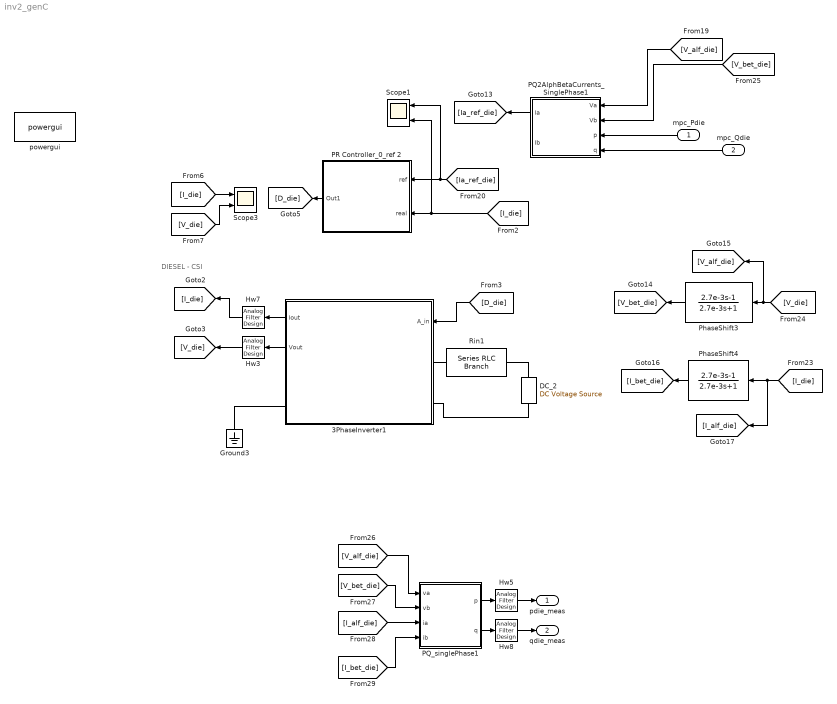
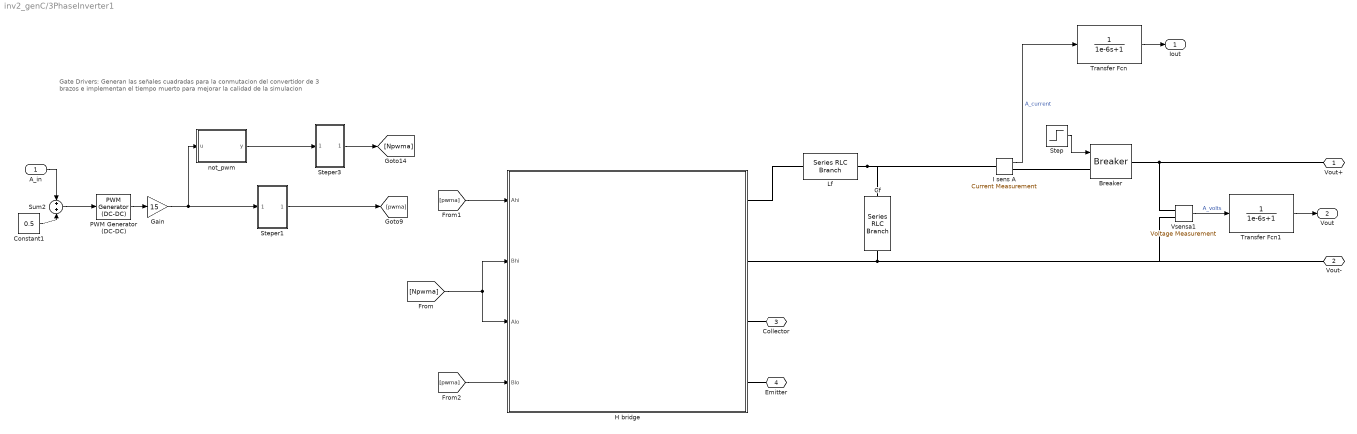
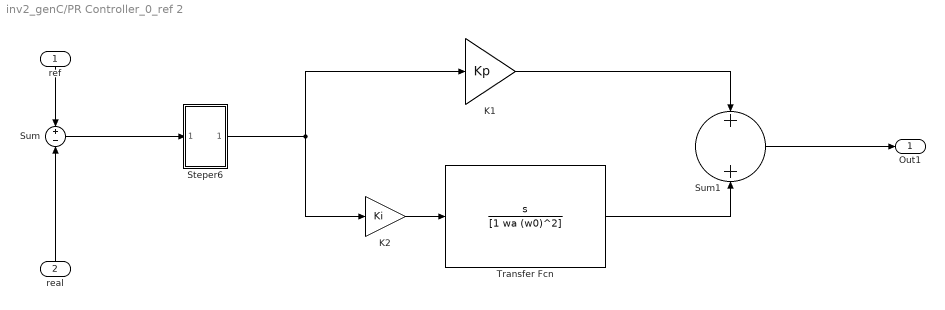
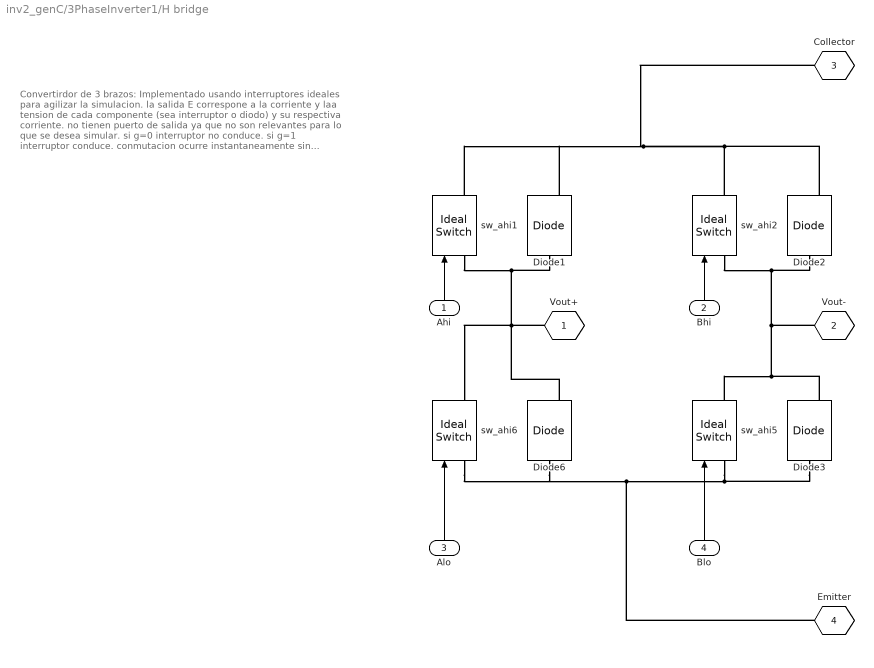
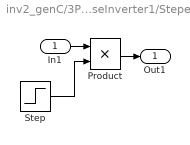
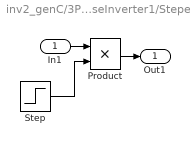
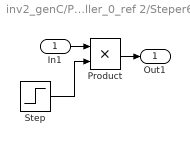
== matlab function inv2_genC/3PhaseInverter1/not_pwm ==
function y = fcn(u)
%#codegen

if(u==0 || u<0)
    a=15;
else
    a=0;
end;

y = a;

== matlab function inv2_genC/PQ2AlphBetaCurrents_SinglePhase1 ==
function [Ia, Ib] = fcn(Va, Vb, p, q)
%#codegen

% divide by zero protection
if(abs((Va^2+Vb^2))<=1000*eps(0))
    det = 1/eps(0);
else
    det = 1/(Va^2+Vb^2); % constante auxiliar
end;
%det = 1/(Va^2+Vb^2);

Mat = det*[Va Vb; Vb -Va];
Iab = Mat*[2*p;2*q];

Iaaux = Iab(1);
Ibaux = Iab(2);

ilim=1e3;

if(Iaaux>ilim)
    Iaaux=ilim;
end;
if(Iaaux<-ilim)
    Iaaux =-ilim;    
end;

if(isnan(Iaaux))
    Iaaux=0;
end;
%-----------------


if(Ibaux>ilim)
    Ibaux=ilim;
end;
if(Ibaux<-ilim)
    Ibaux =-ilim;    
end;

if(isnan(Ibaux))
    Ibaux=0;
end;
%-----------------


Ia = Iaaux;
Ib = Ibaux;

== matlab function inv2_genC/PQ_singlePhase1 ==
function [p, q] = fcn(va, vb, ia, ib)
% Esta funcion calcula la potencia activa y reactiva instantanea
% para el caso mnosofasico. En la revision de 2 papers he observado
% que una manera de extender la teoria de potencia al caso monofasico
% es asumiendo la tension o corriente de una fase como la componente
% alpha y hacer un desfase de 90 grados para obtener una version
% artificial de beta.

paux=va*ia+vb*ib;
if(paux > 20e4)
    paux = 20e4;
end
if(paux < -20e4)
    paux = -20e-4;
end

p = paux/2; % potencia activa instantanea

qaux = vb*ia-va*ib;

if(qaux>20e4)
    qaux=20e4;
end
if(qaux<-20e4)
    qaux=-20e4;
end

q = qaux/2; % potencia reactiva instantanea

/*
 * File: inv2_genC.c
 *
 * Code generated for Simulink model 'inv2_genC'.
 *
 * Model version                  : 1.7
 * Simulink Coder version         : 8.12 (R2017a) 16-Feb-2017
 * C/C++ source code generated on : Sat Apr 21 19:17:20 2018
 *
 * Target selection: ert.tlc
 * Embedded hardware selection: Intel->x86-64 (Windows64)
 * Code generation objectives: Unspecified
 * Validation result: Not run
 */

#include "inv2_genC.h"
#include "inv2_genC_private.h"

/* Block signals (auto storage) */
B_inv2_genC_T inv2_genC_B;

/* Continuous states */
X_inv2_genC_T inv2_genC_X;

/* Block states (auto storage) */
DW_inv2_genC_T inv2_genC_DW;

/* External inputs (root inport signals with auto storage) */
ExtU_inv2_genC_T inv2_genC_U;

/* External outputs (root outports fed by signals with auto storage) */
ExtY_inv2_genC_T inv2_genC_Y;

/* Real-time model */
RT_MODEL_inv2_genC_T inv2_genC_M_;
RT_MODEL_inv2_genC_T *const inv2_genC_M = &inv2_genC_M_;

/*
 * This function updates continuous states using the ODE3 fixed-step
 * solver algorithm
 */
static void rt_ertODEUpdateContinuousStates(RTWSolverInfo *si )
{
  /* Solver Matrices */
  static const real_T rt_ODE3_A[3] = {
    1.0/2.0, 3.0/4.0, 1.0
  };

  static const real_T rt_ODE3_B[3][3] = {
    { 1.0/2.0, 0.0, 0.0 },

    { 0.0, 3.0/4.0, 0.0 },

    { 2.0/9.0, 1.0/3.0, 4.0/9.0 }
  };

  time_T t = rtsiGetT(si);
  time_T tnew = rtsiGetSolverStopTime(si);
  time_T h = rtsiGetStepSize(si);
  real_T *x = rtsiGetContStates(si);
  ODE3_IntgData *id = (ODE3_IntgData *)rtsiGetSolverData(si);
  real_T *y = id->y;
  real_T *f0 = id->f[0];
  real_T *f1 = id->f[1];
  real_T *f2 = id->f[2];
  real_T hB[3];
  int_T i;
  int_T nXc = 18;
  rtsiSetSimTimeStep(si,MINOR_TIME_STEP);

  /* Save the state values at time t in y, we'll use x as ynew. */
  (void) memcpy(y, x,
                (uint_T)nXc*sizeof(real_T));

  /* Assumes that rtsiSetT and ModelOutputs are up-to-date */
  /* f0 = f(t,y) */
  rtsiSetdX(si, f0);
  inv2_genC_derivatives();

  /* f(:,2) = feval(odefile, t + hA(1), y + f*hB(:,1), args(:)(*)); */
  hB[0] = h * rt_ODE3_B[0][0];
  for (i = 0; i < nXc; i++) {
    x[i] = y[i] + (f0[i]*hB[0]);
  }

  rtsiSetT(si, t + h*rt_ODE3_A[0]);
  rtsiSetdX(si, f1);
  inv2_genC_step();
  inv2_genC_derivatives();

  /* f(:,3) = feval(odefile, t + hA(2), y + f*hB(:,2), args(:)(*)); */
  for (i = 0; i <= 1; i++) {
    hB[i] = h * rt_ODE3_B[1][i];
  }

  for (i = 0; i < nXc; i++) {
    x[i] = y[i] + (f0[i]*hB[0] + f1[i]*hB[1]);
  }

  rtsiSetT(si, t + h*rt_ODE3_A[1]);
  rtsiSetdX(si, f2);
  inv2_genC_step();
  inv2_genC_derivatives();

  /* tnew = t + hA(3);
     ynew = y + f*hB(:,3); */
  for (i = 0; i <= 2; i++) {
    hB[i] = h * rt_ODE3_B[2][i];
  }

  for (i = 0; i < nXc; i++) {
    x[i] = y[i] + (f0[i]*hB[0] + f1[i]*hB[1] + f2[i]*hB[2]);
  }

  rtsiSetT(si, tnew);
  rtsiSetSimTimeStep(si,MAJOR_TIME_STEP);
}

real_T rt_remd_snf(real_T u0, real_T u1)
{
  real_T y;
  real_T q;
  if (!((!rtIsNaN(u0)) && (!rtIsInf(u0)) && ((!rtIsNaN(u1)) && (!rtIsInf(u1)))))
  {
    y = (rtNaN);
  } else if ((u1 != 0.0) && (u1 != trunc(u1))) {
    q = fabs(u0 / u1);
    if (fabs(q - floor(q + 0.5)) <= DBL_EPSILON * q) {
      y = 0.0 * u0;
    } else {
      y = fmod(u0, u1);
    }
  } else {
    y = fmod(u0, u1);
  }

  return y;
}

/* Model step function */
void inv2_genC_step(void)
{
  if (rtmIsMajorTimeStep(inv2_genC_M)) {
    /* set solver stop time */
    if (!(inv2_genC_M->Timing.clockTick0+1)) {
      rtsiSetSolverStopTime(&inv2_genC_M->solverInfo,
                            ((inv2_genC_M->Timing.clockTickH0 + 1) *
        inv2_genC_M->Timing.stepSize0 * 4294967296.0));
    } else {
      rtsiSetSolverStopTime(&inv2_genC_M->solverInfo,
                            ((inv2_genC_M->Timing.clockTick0 + 1) *
        inv2_genC_M->Timing.stepSize0 + inv2_genC_M->Timing.clockTickH0 *
        inv2_genC_M->Timing.stepSize0 * 4294967296.0));
    }
  }                                    /* end MajorTimeStep */

  /* Update absolute time of base rate at minor time step */
  if (rtmIsMinorTimeStep(inv2_genC_M)) {
    inv2_genC_M->Timing.t[0] = rtsiGetT(&inv2_genC_M->solverInfo);
  }

  {
    int32_T a;
    real_T rtb_Product;
    real_T rtb_PhaseShift3;
    real_T rtb_PhaseShift4;
    real_T Sum2;
    if (rtmIsMajorTimeStep(inv2_genC_M)) {
      /* S-Function (sfun_spssw_discc): '<S48>/State-Space' incorporates:
       *  Constant: '<S33>/eee'
       *  Constant: '<S35>/eee'
       *  Constant: '<S37>/eee'
       *  Constant: '<S39>/eee'
       *  Constant: '<S46>/DC'
       *  Constant: '<S50>/SwitchCurrents'
       */

      /* S-Function block: <S48>/State-Space */
      {
        real_T accum;

        /* Circuit has switches */
        int_T *switch_status = (int_T*)
          inv2_genC_DW.StateSpace_PWORK.SWITCH_STATUS;
        int_T *switch_status_init = (int_T*)
          inv2_genC_DW.StateSpace_PWORK.SWITCH_STATUS_INIT;
        int_T *SwitchChange = (int_T*) inv2_genC_DW.StateSpace_PWORK.SW_CHG;
        int_T *gState = (int_T*) inv2_genC_DW.StateSpace_PWORK.G_STATE;
        real_T *yswitch = (real_T*)inv2_genC_DW.StateSpace_PWORK.Y_SWITCH;
        int_T *switchTypes = (int_T*) inv2_genC_DW.StateSpace_PWORK.SWITCH_TYPES;
        int_T *idxOutSw = (int_T*) inv2_genC_DW.StateSpace_PWORK.IDX_OUT_SW;
        real_T *DxCol = (real_T*)inv2_genC_DW.StateSpace_PWORK.DX_COL;
        real_T *tmp2 = (real_T*)inv2_genC_DW.StateSpace_PWORK.TMP2;
        real_T *BDcol = (real_T*)inv2_genC_DW.StateSpace_PWORK.BD_COL;
        real_T *tmp1 = (real_T*)inv2_genC_DW.StateSpace_PWORK.TMP1;
        real_T *uswlast = (real_T*)inv2_genC_DW.StateSpace_PWORK.USWLAST;
        int_T newState;
        int_T swChanged = 0;
        int loopsToDo = 20;
        real_T temp;

        /* keep an initial copy of switch_status*/
        memcpy(switch_status_init, switch_status, 9 * sizeof(int_T));
        memcpy(uswlast, &inv2_genC_B.StateSpace_o1[0], 9*sizeof(real_T));
        do {
          if (loopsToDo == 1) {        /* Need to reset some variables: */
            swChanged = 0;

            /* return to the original switch status*/
            {
              int_T i1;
              for (i1=0; i1 < 9; i1++) {
                swChanged = ((SwitchChange[i1] = switch_status_init[i1] -
                              switch_status[i1]) != 0) ? 1 : swChanged;
                switch_status[i1] = switch_status_init[i1];
              }
            }
          } else {
            /*
             * Compute outputs:
             * ---------------
             */
            real_T *Cs = (real_T*)inv2_genC_DW.StateSpace_PWORK.CS;
            real_T *Ds = (real_T*)inv2_genC_DW.StateSpace_PWORK.DS;

            {
              int_T i1;
              real_T *y0 = &inv2_genC_B.StateSpace_o1[0];
              for (i1=0; i1 < 11; i1++) {
                accum = 0.0;

                {
                  int_T i2;
                  real_T *xd = &inv2_genC_DW.StateSpace_DSTATE[0];
                  for (i2=0; i2 < 6; i2++) {
                    accum += *(Cs++) * xd[i2];
                  }
                }

                {
                  int_T i2;
                  const real_T *u0 = inv2_genC_ConstP.SwitchCurrents_Value;
                  for (i2=0; i2 < 9; i2++) {
                    accum += *(Ds++) * u0[i2];
                  }

                  accum += *(Ds++) * 1000.0;
                  accum += *(Ds++) * 0.8;
                  accum += *(Ds++) * 0.8;
                  accum += *(Ds++) * 0.8;
                  accum += *(Ds++) * 0.8;
                }

                y0[i1] = accum;
              }
            }

            swChanged = 0;

            {
              int_T i1;
              real_T *y0 = &inv2_genC_B.StateSpace_o1[0];
              for (i1=0; i1 < 9; i1++) {
                switch (switchTypes[i1]) {
                 case 1 :              /* Ideal switch */
                  newState = gState[i1] > 0 ? 1 : 0;
                  break;

                 case 2 :              /* Breaker */
                  newState = (gState[i1] > 0) ? 1 : ((y0[i1]*uswlast[i1] < 0.0) ?
                    0 : switch_status[i1]);
                  break;

                 case 3 :              /* Diodes */
                  newState = y0[i1] > 0.0 ? 1 : ((y0[i1] < 0.0) ? 0 :
                    switch_status[i1]);
                  break;
                }

                swChanged = ((SwitchChange[i1] = newState - switch_status[i1])
                             != 0) ? 1 : swChanged;
                switch_status[i1] = newState;/* Keep new state */
              }
            }
          }

          /*
           * Compute new As, Bs, Cs and Ds matrixes:
           * --------------------------------------
           */
          if (swChanged) {
            real_T *As = (real_T*)inv2_genC_DW.StateSpace_PWORK.AS;
            real_T *Cs = (real_T*)inv2_genC_DW.StateSpace_PWORK.CS;
            real_T *Bs = (real_T*)inv2_genC_DW.StateSpace_PWORK.BS;
            real_T *Ds = (real_T*)inv2_genC_DW.StateSpace_PWORK.DS;
            real_T a1;

            {
              int_T i1;
              for (i1=0; i1 < 9; i1++) {
                if (SwitchChange[i1] != 0) {
                  a1 = yswitch[i1]*SwitchChange[i1];
                  temp = 1/(1-Ds[i1*15]*a1);

                  {
                    int_T i2;
                    for (i2=0; i2 < 11; i2++) {
                      DxCol[i2]= Ds[i2 * 14 + i1]*temp*a1;
                    }
                  }

                  DxCol[i1] = temp;

                  {
                    int_T i2;
                    for (i2=0; i2 < 6; i2++) {
                      BDcol[i2]= Bs[i2 * 14 + i1]*a1;
                    }
                  }

                  /* Copy row nSw of Cs into tmp1 and zero it out in Cs */
                  memcpy(tmp1, &Cs[i1 * 6], 6 * sizeof(real_T));
                  memset(&Cs[i1 * 6], '\0', 6 * sizeof(real_T));

                  /* Copy row nSw of Ds into tmp2 and zero it out in Ds */
                  memcpy(tmp2, &Ds[i1 * 14], 14 * sizeof(real_T));
                  memset(&Ds[i1 * 14], '\0', 14 * sizeof(real_T));

                  /* Cs = Cs + DxCol * tmp1, Ds = Ds + DxCol * tmp2 *******************/
                  {
                    int_T i2;
                    for (i2=0; i2 < 11; i2++) {
                      a1 = DxCol[i2];

                      {
                        int_T i3;
                        for (i3=0; i3 < 6; i3++) {
                          Cs[i2 * 6 + i3] += a1 * tmp1[i3];
                        }
                      }

                      {
                        int_T i3;
                        for (i3=0; i3 < 14; i3++) {
                          Ds[i2 * 14 + i3] += a1 * tmp2[i3];
                        }
                      }
                    }
                  }

                  /* As = As + BdCol*Cs(nSw,:), Bs = Bs + BdCol*Ds(nSw,:) *************/
                  {
                    int_T i2;
                    for (i2=0; i2 < 6; i2++) {
                      a1 = BDcol[i2];

                      {
                        int_T i3;
                        for (i3=0; i3 < 6; i3++) {
                          As[i2 * 6 + i3] += a1 * Cs[i1 * 6 + i3];
                        }
                      }

                      {
                        int_T i3;
                        for (i3=0; i3 < 14; i3++) {
                          Bs[i2 * 14 + i3] += a1 * Ds[i1 * 14 + i3];
                        }
                      }
                    }
                  }
                }
              }
            }
          }                            /* if (swChanged) */
        } while (swChanged > 0 && --loopsToDo > 0);

        if (loopsToDo == 0) {
          real_T *Cs = (real_T*)inv2_genC_DW.StateSpace_PWORK.CS;
          real_T *Ds = (real_T*)inv2_genC_DW.StateSpace_PWORK.DS;

          {
            int_T i1;
            real_T *y0 = &inv2_genC_B.StateSpace_o1[0];
            for (i1=0; i1 < 11; i1++) {
              accum = 0.0;

              {
                int_T i2;
                real_T *xd = &inv2_genC_DW.StateSpace_DSTATE[0];
                for (i2=0; i2 < 6; i2++) {
                  accum += *(Cs++) * xd[i2];
                }
              }

              {
                int_T i2;
                const real_T *u0 = inv2_genC_ConstP.SwitchCurrents_Value;
                for (i2=0; i2 < 9; i2++) {
                  accum += *(Ds++) * u0[i2];
                }

                accum += *(Ds++) * 1000.0;
                accum += *(Ds++) * 0.8;
                accum += *(Ds++) * 0.8;
                accum += *(Ds++) * 0.8;
                accum += *(Ds++) * 0.8;
              }

              y0[i1] = accum;
            }
          }
        }

        /* Output new switches states */
        {
          int_T i1;
          real_T *y1 = &inv2_genC_B.StateSpace_o2[0];
          for (i1=0; i1 < 9; i1++) {
            y1[i1] = (real_T)switch_status[i1];
          }
        }
      }
    }

    /* Outport: '<Root>/pdie_meas' incorporates:
     *  StateSpace: '<Root>/Hw5'
     */
    inv2_genC_Y.pdie_meas = 0.94444980822600488 * inv2_genC_X.Hw5_CSTATE[3];

    /* Outport: '<Root>/qdie_meas' incorporates:
     *  StateSpace: '<Root>/Hw8'
     */
    inv2_genC_Y.qdie_meas = 0.94444980822600488 * inv2_genC_X.Hw8_CSTATE[3];

    /* TransferFcn: '<S1>/Transfer Fcn' */
    inv2_genC_B.TransferFcn = 0.0;
    inv2_genC_B.TransferFcn += 1.0E+6 * inv2_genC_X.TransferFcn_CSTATE;

    /* TransferFcn: '<S1>/Transfer Fcn1' */
    inv2_genC_B.TransferFcn1 = 0.0;
    inv2_genC_B.TransferFcn1 += 1.0E+6 * inv2_genC_X.TransferFcn1_CSTATE;

    /* StateSpace: '<Root>/Hw3' */
    inv2_genC_B.Hw3 = 0.0;
    inv2_genC_B.Hw3 += 1.0000000000000002 * inv2_genC_X.Hw3_CSTATE[1];

    /* TransferFcn: '<Root>/PhaseShift3' */
    rtb_PhaseShift3 = -740.74074074074065 * inv2_genC_X.PhaseShift3_CSTATE +
      0.99999999999999989 * inv2_genC_B.Hw3;

    /* MATLAB Function: '<Root>/PQ2AlphBetaCurrents_SinglePhase1' incorporates:
     *  Inport: '<Root>/mpc_Pdie'
     *  Inport: '<Root>/mpc_Qdie'
     */
    /*  divide by zero protection */
    /* MATLAB Function 'PQ2AlphBetaCurrents_SinglePhase1': '<S3>:1' */
    /* '<S3>:1:5' if(abs((Va^2+Vb^2))<=1000*eps(0)) */
    if (fabs(inv2_genC_B.Hw3 * inv2_genC_B.Hw3 + rtb_PhaseShift3 *
             rtb_PhaseShift3) <= 4.94065645841247E-321) {
      /* '<S3>:1:6' det = 1/eps(0); */
      rtb_Product = (rtInf);
    } else {
      /* '<S3>:1:7' else */
      /* '<S3>:1:8' det = 1/(Va^2+Vb^2); */
      rtb_Product = 1.0 / (inv2_genC_B.Hw3 * inv2_genC_B.Hw3 + rtb_PhaseShift3 *
                           rtb_PhaseShift3);

      /*  constante auxiliar */
    }

    /* det = 1/(Va^2+Vb^2); */
    /* '<S3>:1:12' Mat = det*[Va Vb; Vb -Va]; */
    /* '<S3>:1:13' Iab = Mat*[2*p;2*q]; */
    rtb_Product = rtb_Product * inv2_genC_B.Hw3 * (2.0 * inv2_genC_U.mpc_Pdie) +
      rtb_Product * rtb_PhaseShift3 * (2.0 * inv2_genC_U.mpc_Qdie);

    /* '<S3>:1:15' Iaaux = Iab(1); */
    /* '<S3>:1:16' Ibaux = Iab(2); */
    /* '<S3>:1:18' ilim=1e3; */
    /* '<S3>:1:20' if(Iaaux>ilim) */
    if (rtb_Product > 1000.0) {
      /* '<S3>:1:21' Iaaux=ilim; */
      rtb_Product = 1000.0;
    }

    /* '<S3>:1:23' if(Iaaux<-ilim) */
    if (rtb_Product < -1000.0) {
      /* '<S3>:1:24' Iaaux =-ilim; */
      rtb_Product = -1000.0;
    }

    /* '<S3>:1:27' if(isnan(Iaaux)) */
    if (rtIsNaN(rtb_Product)) {
      /* '<S3>:1:28' Iaaux=0; */
      rtb_Product = 0.0;
    }

    /* StateSpace: '<Root>/Hw7' */
    /* ----------------- */
    /* '<S3>:1:33' if(Ibaux>ilim) */
    /* '<S3>:1:36' if(Ibaux<-ilim) */
    /* '<S3>:1:40' if(isnan(Ibaux)) */
    /* ----------------- */
    /* '<S3>:1:46' Ia = Iaaux; */
    /* '<S3>:1:47' Ib = Ibaux; */
    inv2_genC_B.Hw7 = 0.0;
    inv2_genC_B.Hw7 += 1.0000000000000002 * inv2_genC_X.Hw7_CSTATE[1];

    /* Product: '<S47>/Product' incorporates:
     *  MATLAB Function: '<Root>/PQ2AlphBetaCurrents_SinglePhase1'
     *  Step: '<S47>/Step'
     *  Sum: '<S5>/Sum'
     */
    rtb_Product = (rtb_Product - inv2_genC_B.Hw7) * (real_T)
      !(inv2_genC_M->Timing.t[0] < 0.001);

    /* Sum: '<S1>/Sum2' incorporates:
     *  Constant: '<S1>/Constant1'
     *  Gain: '<S5>/K1'
     *  Sum: '<S5>/Sum1'
     *  TransferFcn: '<S5>/Transfer Fcn'
     */
    Sum2 = ((0.0 * inv2_genC_X.TransferFcn_CSTATE_n[1] +
             inv2_genC_X.TransferFcn_CSTATE_n[0]) + 0.4 * rtb_Product) + 0.5;
    if (rtmIsMajorTimeStep(inv2_genC_M)) {
      /* Gain: '<S1>/Gain' incorporates:
       *  Constant: '<S42>/Constant'
       *  Constant: '<S44>/Constant2'
       *  DataTypeConversion: '<S10>/Data Type Conversion'
       *  DigitalClock: '<S44>/Digital Clock'
       *  Fcn: '<S10>/Fcn'
       *  Fcn: '<S44>/Fcn'
       *  Gain: '<S44>/1\ib1'
       *  Logic: '<S10>/Logical Operator'
       *  Math: '<S44>/Math Function'
       *  RelationalOperator: '<S10>/Relational Operator'
       *  RelationalOperator: '<S42>/Compare'
       */
      Sum2 = (real_T)((Sum2 != 0.0) && (Sum2 >= ((12000.0 * rt_remd_snf
        ((((inv2_genC_M->Timing.clockTick1+inv2_genC_M->Timing.clockTickH1*
            4294967296.0)) * 1.0E-6), 8.3333333333333331E-5) * 2.0 - 1.0) + 1.0)
        * 0.5)) * 15.0;

      /* Product: '<S11>/Product' incorporates:
       *  Step: '<S11>/Step'
       */
      inv2_genC_B.Product = (real_T)!((((inv2_genC_M->Timing.clockTick1+
        inv2_genC_M->Timing.clockTickH1* 4294967296.0)) * 1.0E-6) < 0.001) *
        Sum2;

      /* MATLAB Function: '<S1>/not_pwm' */
      /* MATLAB Function '3PhaseInverter1/not_pwm': '<S14>:1' */
      /* '<S14>:1:4' if(u==0 || u<0) */
      if (Sum2 == 0.0) {
        /* '<S14>:1:5' a=15; */
        a = 15;
      } else {
        /* '<S14>:1:6' else */
        /* '<S14>:1:7' a=0; */
        a = 0;
      }

      /* Product: '<S12>/Product' incorporates:
       *  MATLAB Function: '<S1>/not_pwm'
       *  Step: '<S12>/Step'
       */
      /* '<S14>:1:10' y = a; */
      inv2_genC_B.Product_c = (real_T)!((((inv2_genC_M->Timing.clockTick1+
        inv2_genC_M->Timing.clockTickH1* 4294967296.0)) * 1.0E-6) < 0.001) *
        (real_T)a;
    }

    /* Lookup: '<S16>/Look-Up Table' incorporates:
     *  Clock: '<S16>/Clock'
     */
    inv2_genC_B.LookUpTable = rt_Lookup(inv2_genC_ConstP.LookUpTable_XData, 5,
      inv2_genC_M->Timing.t[0], inv2_genC_ConstP.LookUpTable_YData);

    /* Step: '<S1>/Step' */
    inv2_genC_B.Step = !(inv2_genC_M->Timing.t[0] < 0.001);

    /* TransferFcn: '<Root>/PhaseShift4' */
    rtb_PhaseShift4 = -740.74074074074065 * inv2_genC_X.PhaseShift4_CSTATE +
      0.99999999999999989 * inv2_genC_B.Hw7;

    /* MATLAB Function: '<Root>/PQ_singlePhase1' */
    /*  Esta funcion calcula la potencia activa y reactiva instantanea */
    /*  para el caso mnosofasico. En la revision de 2 papers he observado */
    /*  que una manera de extender la teoria de potencia al caso monofasico */
    /*  es asumiendo la tension o corriente de una fase como la componente */
    /*  alpha y hacer un desfase de 90 grados para obtener una version */
    /*  artificial de beta. */
    /* MATLAB Function 'PQ_singlePhase1': '<S4>:1' */
    /* '<S4>:1:9' paux=va*ia+vb*ib; */
    Sum2 = inv2_genC_B.Hw3 * inv2_genC_B.Hw7 + rtb_PhaseShift3 * rtb_PhaseShift4;

    /* '<S4>:1:10' if(paux > 20e4) */
    if (Sum2 > 200000.0) {
      /* '<S4>:1:11' paux = 20e4; */
      Sum2 = 200000.0;
    }

    /* '<S4>:1:13' if(paux < -20e4) */
    if (Sum2 < -200000.0) {
      /* '<S4>:1:14' paux = -20e-4; */
      Sum2 = -0.002;
    }

    /* '<S4>:1:17' p = paux/2; */
    inv2_genC_B.p = Sum2 / 2.0;

    /*  potencia activa instantanea */
    /* '<S4>:1:19' qaux = vb*ia-va*ib; */
    rtb_PhaseShift3 = rtb_PhaseShift3 * inv2_genC_B.Hw7 - inv2_genC_B.Hw3 *
      rtb_PhaseShift4;

    /* '<S4>:1:21' if(qaux>20e4) */
    if (rtb_PhaseShift3 > 200000.0) {
      /* '<S4>:1:22' qaux=20e4; */
      rtb_PhaseShift3 = 200000.0;
    }

    /* '<S4>:1:24' if(qaux<-20e4) */
    if (rtb_PhaseShift3 < -200000.0) {
      /* '<S4>:1:25' qaux=-20e4; */
      rtb_PhaseShift3 = -200000.0;
    }

    /* '<S4>:1:28' q = qaux/2; */
    inv2_genC_B.q = rtb_PhaseShift3 / 2.0;

    /* End of MATLAB Function: '<Root>/PQ_singlePhase1' */

    /* Gain: '<S5>/K2' */
    /*  potencia reactiva instantanea */
    inv2_genC_B.K2 = 200.0 * rtb_Product;
  }

  if (rtmIsMajorTimeStep(inv2_genC_M)) {
    real_T *lastU;
    if (rtmIsMajorTimeStep(inv2_genC_M)) {
      /* Update for S-Function (sfun_spssw_discc): '<S48>/State-Space' incorporates:
       *  Constant: '<S33>/eee'
       *  Constant: '<S35>/eee'
       *  Constant: '<S37>/eee'
       *  Constant: '<S39>/eee'
       *  Constant: '<S46>/DC'
       *  Constant: '<S50>/SwitchCurrents'
       */

      /* S-Function block: <S48>/State-Space */
      {
        const real_T *As = (real_T*)inv2_genC_DW.StateSpace_PWORK.AS;
        const real_T *Bs = (real_T*)inv2_genC_DW.StateSpace_PWORK.BS;
        real_T *xtmp = (real_T*)inv2_genC_DW.StateSpace_PWORK.XTMP;
        real_T accum;

        /* Calculate new states... */
        {
          int_T i1;
          real_T *xd = &inv2_genC_DW.StateSpace_DSTATE[0];
          for (i1=0; i1 < 6; i1++) {
            accum = 0.0;

            {
              int_T i2;
              real_T *xd = &inv2_genC_DW.StateSpace_DSTATE[0];
              for (i2=0; i2 < 6; i2++) {
                accum += *(As++) * xd[i2];
              }
            }

            {
              int_T i2;
              const real_T *u0 = inv2_genC_ConstP.SwitchCurrents_Value;
              for (i2=0; i2 < 9; i2++) {
                accum += *(Bs++) * u0[i2];
              }

              accum += *(Bs++) * 1000.0;
              accum += *(Bs++) * 0.8;
              accum += *(Bs++) * 0.8;
              accum += *(Bs++) * 0.8;
              accum += *(Bs++) * 0.8;
            }

            xtmp[i1] = accum;
          }
        }

        {
          int_T i1;
          real_T *xd = &inv2_genC_DW.StateSpace_DSTATE[0];
          for (i1=0; i1 < 6; i1++) {
            xd[i1] = xtmp[i1];
          }
        }

        {
          int_T *gState = (int_T*)inv2_genC_DW.StateSpace_PWORK.G_STATE;

          /* Store switch gates values for next step */
          *(gState++) = (int_T) inv2_genC_B.Product;
          *(gState++) = (int_T) inv2_genC_B.Product_c;
          *(gState++) = (int_T) inv2_genC_B.Product;
          *(gState++) = (int_T) inv2_genC_B.Product_c;
          *(gState++) = (int_T) inv2_genC_B.Step;
          *(gState++) = (int_T) 0.0;
          *(gState++) = (int_T) 0.0;
          *(gState++) = (int_T) 0.0;
          *(gState++) = (int_T) 0.0;
        }
      }
    }

    /* Update for Derivative: '<S16>/Derivative' */
    if (inv2_genC_DW.TimeStampA == (rtInf)) {
      inv2_genC_DW.TimeStampA = inv2_genC_M->Timing.t[0];
      lastU = &inv2_genC_DW.LastUAtTimeA;
    } else if (inv2_genC_DW.TimeStampB == (rtInf)) {
      inv2_genC_DW.TimeStampB = inv2_genC_M->Timing.t[0];
      lastU = &inv2_genC_DW.LastUAtTimeB;
    } else if (inv2_genC_DW.TimeStampA < inv2_genC_DW.TimeStampB) {
      inv2_genC_DW.TimeStampA = inv2_genC_M->Timing.t[0];
      lastU = &inv2_genC_DW.LastUAtTimeA;
    } else {
      inv2_genC_DW.TimeStampB = inv2_genC_M->Timing.t[0];
      lastU = &inv2_genC_DW.LastUAtTimeB;
    }

    *lastU = inv2_genC_B.LookUpTable;

    /* End of Update for Derivative: '<S16>/Derivative' */
  }                                    /* end MajorTimeStep */

  if (rtmIsMajorTimeStep(inv2_genC_M)) {
    rt_ertODEUpdateContinuousStates(&inv2_genC_M->solverInfo);

    /* Update absolute time for base rate */
    /* The "clockTick0" counts the number of times the code of this task has
     * been executed. The absolute time is the multiplication of "clockTick0"
     * and "Timing.stepSize0". Size of "clockTick0" ensures timer will not
     * overflow during the application lifespan selected.
     * Timer of this task consists of two 32 bit unsigned integers.
     * The two integers represent the low bits Timing.clockTick0 and the high bits
     * Timing.clockTickH0. When the low bit overflows to 0, the high bits increment.
     */
    if (!(++inv2_genC_M->Timing.clockTick0)) {
      ++inv2_genC_M->Timing.clockTickH0;
    }

    inv2_genC_M->Timing.t[0] = rtsiGetSolverStopTime(&inv2_genC_M->solverInfo);

    {
      /* Update absolute timer for sample time: [1.0E-6s, 0.0s] */
      /* The "clockTick1" counts the number of times the code of this task has
       * been executed. The resolution of this integer timer is 1.0E-6, which is the step size
       * of the task. Size of "clockTick1" ensures timer will not overflow during the
       * application lifespan selected.
       * Timer of this task consists of two 32 bit unsigned integers.
       * The two integers represent the low bits Timing.clockTick1 and the high bits
       * Timing.clockTickH1. When the low bit overflows to 0, the high bits increment.
       */
      inv2_genC_M->Timing.clockTick1++;
      if (!inv2_genC_M->Timing.clockTick1) {
        inv2_genC_M->Timing.clockTickH1++;
      }
    }
  }                                    /* end MajorTimeStep */
}
